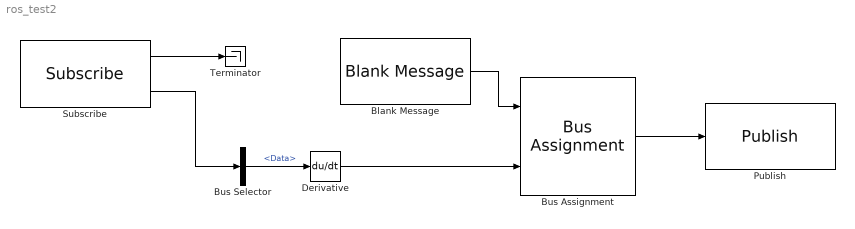
//
// Academic License - for use in teaching, academic research, and meeting
// course requirements at degree granting institutions only.  Not for
// government, commercial, or other organizational use.
//
// File: ros_test2.cpp
//
// Code generated for Simulink model 'ros_test2'.
//
// Model version                  : 1.3
// Simulink Coder version         : 8.12 (R2017a) 16-Feb-2017
// C/C++ source code generated on : Tue Nov 14 00:37:06 2017
//
// Target selection: ert.tlc
// Embedded hardware selection: Generic->Unspecified (assume 32-bit Generic)
// Code generation objectives: Unspecified
// Validation result: Not run
//
#include "ros_test2.h"
#include "ros_test2_private.h"
#define ros_test2_MessageQueueLen      (1)

// Block signals (auto storage)
B_ros_test2_T ros_test2_B;

// Block states (auto storage)
DW_ros_test2_T ros_test2_DW;

// Real-time model
RT_MODEL_ros_test2_T ros_test2_M_;
RT_MODEL_ros_test2_T *const ros_test2_M = &ros_test2_M_;

// Model step function
void ros_test2_step(void)
{
  {
    real_T *lastU;
    SL_Bus_ros_test2_std_msgs_Float64 varargout_2;
    boolean_T varargout_1;
    SL_Bus_ros_test2_std_msgs_Float64 rtb_BusAssignment;
    real_T rtb_Derivative;

    // Outputs for Atomic SubSystem: '<Root>/Subscribe'
    // Start for MATLABSystem: '<S3>/SourceBlock' incorporates:
    //   Inport: '<S4>/In1'
    //   MATLABSystem: '<S3>/SourceBlock'

    varargout_1 = Sub_ros_test2_3.getLatestMessage(&varargout_2);

    // Outputs for Enabled SubSystem: '<S3>/Enabled Subsystem' incorporates:
    //   EnablePort: '<S4>/Enable'

    if (varargout_1) {
      ros_test2_B.In1 = varargout_2;
    }

    // End of Start for MATLABSystem: '<S3>/SourceBlock'
    // End of Outputs for SubSystem: '<S3>/Enabled Subsystem'
    // End of Outputs for SubSystem: '<Root>/Subscribe'

    // Derivative: '<Root>/Derivative'
    if ((ros_test2_DW.TimeStampA >= ros_test2_M->Timing.t[0]) &&
        (ros_test2_DW.TimeStampB >= ros_test2_M->Timing.t[0])) {
      rtb_Derivative = 0.0;
    } else {
      rtb_Derivative = ros_test2_DW.TimeStampA;
      lastU = &ros_test2_DW.LastUAtTimeA;
      if (ros_test2_DW.TimeStampA < ros_test2_DW.TimeStampB) {
        if (ros_test2_DW.TimeStampB < ros_test2_M->Timing.t[0]) {
          rtb_Derivative = ros_test2_DW.TimeStampB;
          lastU = &ros_test2_DW.LastUAtTimeB;
        }
      } else {
        if (ros_test2_DW.TimeStampA >= ros_test2_M->Timing.t[0]) {
          rtb_Derivative = ros_test2_DW.TimeStampB;
          lastU = &ros_test2_DW.LastUAtTimeB;
        }
      }

      rtb_Derivative = (ros_test2_B.In1.Data - *lastU) / (ros_test2_M->Timing.t
        [0] - rtb_Derivative);
    }

    // End of Derivative: '<Root>/Derivative'

    // BusAssignment: '<Root>/Bus Assignment'
    rtb_BusAssignment.Data = rtb_Derivative;

    // Outputs for Atomic SubSystem: '<Root>/Publish'
    // Start for MATLABSystem: '<S2>/SinkBlock' incorporates:
    //   MATLABSystem: '<S2>/SinkBlock'

    Pub_ros_test2_7.publish(&rtb_BusAssignment);

    // End of Outputs for SubSystem: '<Root>/Publish'
  }

  {
    real_T *lastU;

    // Update for Derivative: '<Root>/Derivative'
    if (ros_test2_DW.TimeStampA == (rtInf)) {
      ros_test2_DW.TimeStampA = ros_test2_M->Timing.t[0];
      lastU = &ros_test2_DW.LastUAtTimeA;
    } else if (ros_test2_DW.TimeStampB == (rtInf)) {
      ros_test2_DW.TimeStampB = ros_test2_M->Timing.t[0];
      lastU = &ros_test2_DW.LastUAtTimeB;
    } else if (ros_test2_DW.TimeStampA < ros_test2_DW.TimeStampB) {
      ros_test2_DW.TimeStampA = ros_test2_M->Timing.t[0];
      lastU = &ros_test2_DW.LastUAtTimeA;
    } else {
      ros_test2_DW.TimeStampB = ros_test2_M->Timing.t[0];
      lastU = &ros_test2_DW.LastUAtTimeB;
    }

    *lastU = ros_test2_B.In1.Data;

    // End of Update for Derivative: '<Root>/Derivative'
  }

  // Update absolute time for base rate
  // The "clockTick0" counts the number of times the code of this task has
  //  been executed. The absolute time is the multiplication of "clockTick0"
  //  and "Timing.stepSize0". Size of "clockTick0" ensures timer will not
  //  overflow during the application lifespan selected.

  ros_test2_M->Timing.t[0] =
    (++ros_test2_M->Timing.clockTick0) * ros_test2_M->Timing.stepSize0;

  {
    // Update absolute timer for sample time: [0.2s, 0.0s]
    // The "clockTick1" counts the number of times the code of this task has
    //  been executed. The resolution of this integer timer is 0.2, which is the step size
    //  of the task. Size of "clockTick1" ensures timer will not overflow during the
    //  application lifespan selected.

    ros_test2_M->Timing.clockTick1++;
  }
}
